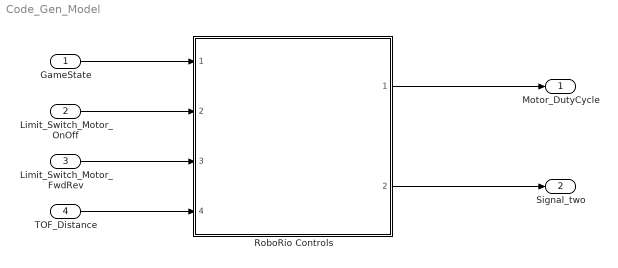
/*
 * Sponsored License - for use in support of a program or activity
 * sponsored by MathWorks.  Not for government, commercial or other
 * non-sponsored organizational use.
 *
 * File: Code_Gen_Model.c
 *
 * Code generated for Simulink model 'Code_Gen_Model'.
 *
 * Model version                  : 2.401
 * Simulink Coder version         : 23.2 (R2023b) 01-Aug-2023
 * C/C++ source code generated on : Thu Jul  3 19:39:04 2025
 *
 * Target selection: ert.tlc
 * Embedded hardware selection: ARM Compatible->ARM 7
 * Code generation objectives: Unspecified
 * Validation result: Not run
 */

#include "Code_Gen_Model.h"
#include <math.h>
#include "rt_nonfinite.h"
#include "rtwtypes.h"

/* Exported block parameters */
real_T Auto_Signal_two = 60.0;         /* Variable: Auto_Signal_two
                                        * Referenced by: '<S7>/Constant1'
                                        */
real_T Teleop_Signal_one = 10.0;       /* Variable: Teleop_Signal_one
                                        * Referenced by: '<S10>/Constant'
                                        */
real_T Teleop_Signal_two = 20.0;       /* Variable: Teleop_Signal_two
                                        * Referenced by: '<S10>/Constant1'
                                        */

/* External inputs (root inport signals with default storage) */
ExtU_Code_Gen_Model_T Code_Gen_Model_U;

/* External outputs (root outports fed by signals with default storage) */
ExtY_Code_Gen_Model_T Code_Gen_Model_Y;

/* Real-time model */
static RT_MODEL_Code_Gen_Model_T Code_Gen_Model_M_;
RT_MODEL_Code_Gen_Model_T *const Code_Gen_Model_M = &Code_Gen_Model_M_;

/* Model step function */
void Code_Gen_Model_step(void)
{
  real_T tmp;

  /* SwitchCase: '<S1>/Switch Case' incorporates:
   *  Inport: '<Root>/GameState'
   */
  tmp = trunc(Code_Gen_Model_U.GameState);
  if ((rtIsNaN(tmp)) || (rtIsInf(tmp))) {
    tmp = 0.0;
  } else {
    tmp = fmod(tmp, 4.294967296E+9);
  }

  switch ((tmp < 0.0) ? (-((int32_T)((uint32_T)(-tmp)))) : ((int32_T)((uint32_T)
            tmp))) {
   case 0:
    /* Outputs for IfAction SubSystem: '<S1>/Disabled' incorporates:
     *  ActionPort: '<S3>/Action Port'
     */
    /* Outport: '<Root>/Motor_DutyCycle' incorporates:
     *  Constant: '<S3>/Constant'
     *  SignalConversion generated from: '<S3>/Motor_DutyCycle'
     */
    Code_Gen_Model_Y.Motor_DutyCycle = 0.0;

    /* Outport: '<Root>/Signal_two' incorporates:
     *  Constant: '<S3>/Constant1'
     *  SignalConversion generated from: '<S3>/Signal_two'
     */
    Code_Gen_Model_Y.Signal_two = 0.0;

    /* End of Outputs for SubSystem: '<S1>/Disabled' */
    break;

   case 1:
    /* Outputs for IfAction SubSystem: '<S1>/Autonomous' incorporates:
     *  ActionPort: '<S2>/Action Port'
     */
    /* Switch: '<S7>/Switch' incorporates:
     *  Constant: '<S8>/Constant'
     *  Inport: '<Root>/Limit_Switch_Motor_OnOff'
     *  RelationalOperator: '<S8>/Compare'
     */
    if (Code_Gen_Model_U.Limit_Switch_Motor_OnOff != 0.0) {
      /* Switch: '<S7>/Switch1' incorporates:
       *  Constant: '<S9>/Constant'
       *  Inport: '<Root>/Limit_Switch_Motor_FwdRev'
       *  RelationalOperator: '<S9>/Compare'
       */
      if (Code_Gen_Model_U.Limit_Switch_Motor_FwdRev != 0.0) {
        /* Outport: '<Root>/Motor_DutyCycle' incorporates:
         *  Constant: '<S7>/Constant'
         *  Inport: '<Root>/TOF_Distance'
         *  Product: '<S7>/Divide'
         *  UnaryMinus: '<S7>/Unary Minus'
         */
        Code_Gen_Model_Y.Motor_DutyCycle = -(Code_Gen_Model_U.TOF_Distance /
          300.0);
      } else {
        /* Outport: '<Root>/Motor_DutyCycle' incorporates:
         *  Constant: '<S7>/Constant'
         *  Inport: '<Root>/TOF_Distance'
         *  Product: '<S7>/Divide'
         */
        Code_Gen_Model_Y.Motor_DutyCycle = Code_Gen_Model_U.TOF_Distance / 300.0;
      }

      /* End of Switch: '<S7>/Switch1' */
    } else {
      /* Outport: '<Root>/Motor_DutyCycle' incorporates:
       *  Constant: '<S7>/Constant3'
       */
      Code_Gen_Model_Y.Motor_DutyCycle = 0.0;
    }

    /* End of Switch: '<S7>/Switch' */

    /* Outport: '<Root>/Signal_two' incorporates:
     *  Constant: '<S7>/Constant1'
     *  SignalConversion generated from: '<S2>/Signal_two'
     */
    Code_Gen_Model_Y.Signal_two = Auto_Signal_two;

    /* End of Outputs for SubSystem: '<S1>/Autonomous' */
    break;

   case 2:
    /* Outputs for IfAction SubSystem: '<S1>/Teleop' incorporates:
     *  ActionPort: '<S5>/Action Port'
     */
    /* Outport: '<Root>/Motor_DutyCycle' incorporates:
     *  Constant: '<S10>/Constant'
     *  SignalConversion generated from: '<S5>/Motor_DutyCycle'
     */
    Code_Gen_Model_Y.Motor_DutyCycle = Teleop_Signal_one;

    /* Outport: '<Root>/Signal_two' incorporates:
     *  Constant: '<S10>/Constant1'
     *  SignalConversion generated from: '<S5>/Signal_two'
     */
    Code_Gen_Model_Y.Signal_two = Teleop_Signal_two;

    /* End of Outputs for SubSystem: '<S1>/Teleop' */
    break;

   default:
    /* Outputs for IfAction SubSystem: '<S1>/Test' incorporates:
     *  ActionPort: '<S6>/Action Port'
     */
    /* Outport: '<Root>/Motor_DutyCycle' incorporates:
     *  Constant: '<S6>/Constant'
     *  SignalConversion generated from: '<S6>/Motor_DutyCycle'
     */
    Code_Gen_Model_Y.Motor_DutyCycle = 0.0;

    /* Outport: '<Root>/Signal_two' incorporates:
     *  Constant: '<S6>/Constant1'
     *  SignalConversion generated from: '<S6>/Signal_two'
     */
    Code_Gen_Model_Y.Signal_two = 0.0;

    /* End of Outputs for SubSystem: '<S1>/Test' */
    break;
  }

  /* End of SwitchCase: '<S1>/Switch Case' */
}
